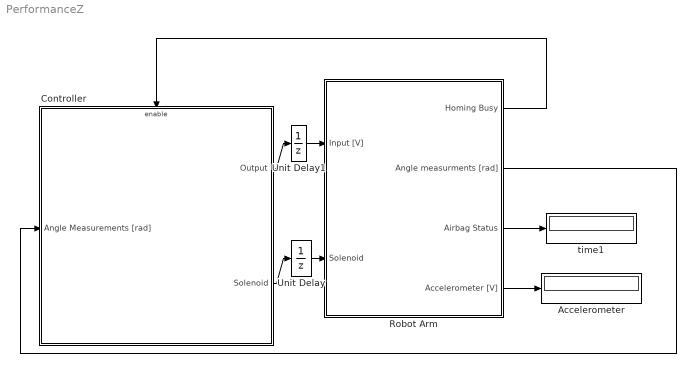
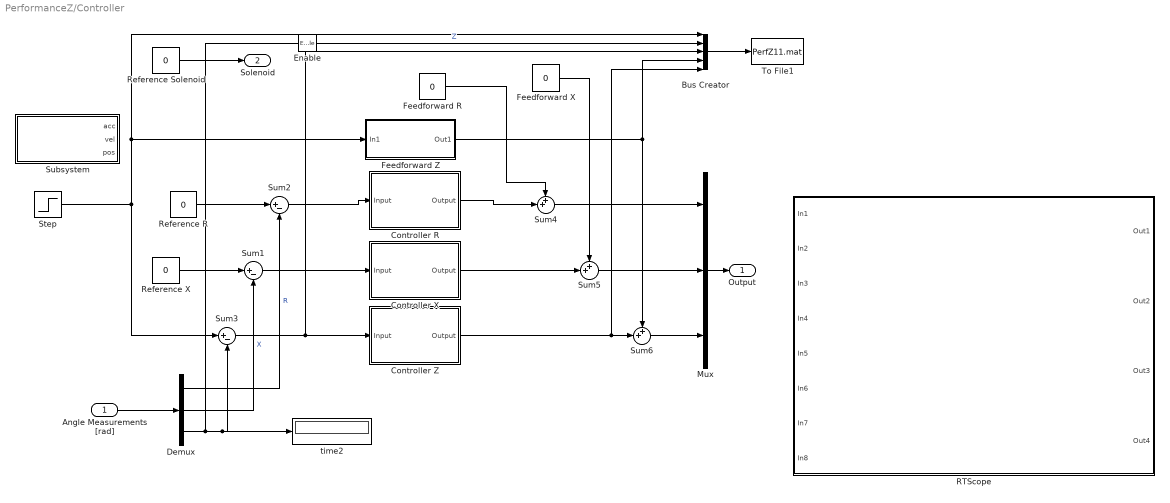
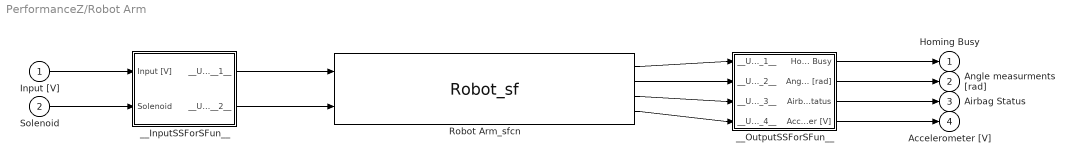
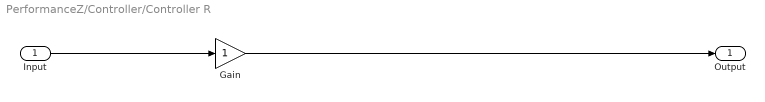
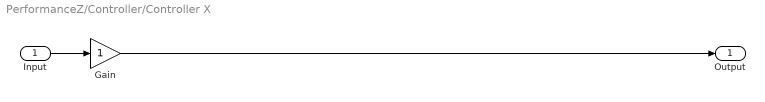
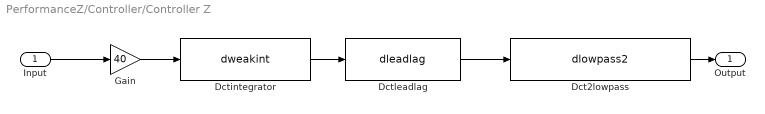
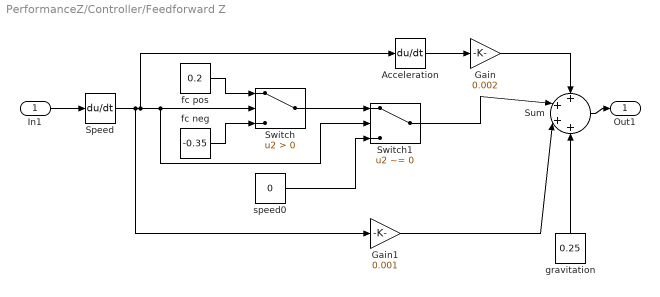
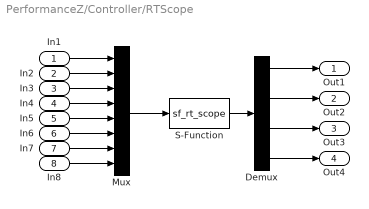
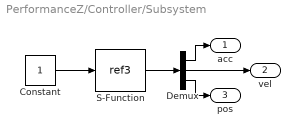
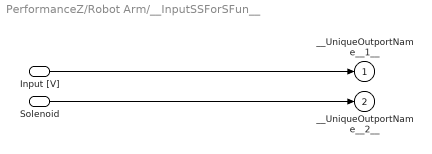
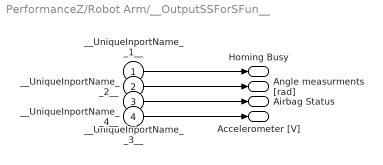
/*
 * PerformanceZ.c
 *
 * Code generation for model "PerformanceZ.mdl".
 *
 * Model version              : 1.943
 * Simulink Coder version : 8.1 (R2011b) 08-Jul-2011
 * C source code generated on : Sat Apr  2 10:57:51 2016
 *
 * Target selection: ectarget.tlc
 * Note: GRT includes extra infrastructure and instrumentation for prototyping
 * Embedded hardware selection: 32-bit Generic
 * Code generation objectives: Unspecified
 * Validation result: Not run
 */
#include "PerformanceZ.h"
#include "PerformanceZ_private.h"
#include "PerformanceZ_dt.h"
#undef S_FUNCTION_NAME
#if !defined(RTW_GENERATED_SFCN_TUNABLE_PRMS_Robot_sf)
#define RTW_GENERATED_SFCN_TUNABLE_PRMS_Robot_sf
#endif

#include "Robot_sf.h"

const real_T PerformanceZ_RGND = 0.0;  /* real_T ground */

/* Block signals (auto storage) */
BlockIO_PerformanceZ PerformanceZ_B;

/* Block states (auto storage) */
D_Work_PerformanceZ PerformanceZ_DWork;

/* Real-time model */
RT_MODEL_PerformanceZ PerformanceZ_M_;
RT_MODEL_PerformanceZ *const PerformanceZ_M = &PerformanceZ_M_;

/*
 * Writes out MAT-file header.  Returns success or failure.
 * Returns:
 *      0 - success
 *      1 - failure
 */
int_T rt_WriteMat4FileHeader(FILE *fp, int32_T m, int32_T n, const char *name)
{
  typedef enum { ELITTLE_ENDIAN, EBIG_ENDIAN } ByteOrder;

  int16_T one = 1;
  ByteOrder byteOrder = (*((int8_T *)&one)==1) ? ELITTLE_ENDIAN : EBIG_ENDIAN;
  int32_T type = (byteOrder == ELITTLE_ENDIAN) ? 0: 1000;
  int32_T imagf = 0;
  int32_T name_len = strlen(name) + 1;
  if ((fwrite(&type, sizeof(int32_T), 1, fp) == 0) ||
      (fwrite(&m, sizeof(int32_T), 1, fp) == 0) ||
      (fwrite(&n, sizeof(int32_T), 1, fp) == 0) ||
      (fwrite(&imagf, sizeof(int32_T), 1, fp) == 0) ||
      (fwrite(&name_len, sizeof(int32_T), 1, fp) == 0) ||
      (fwrite(name, sizeof(char), name_len, fp) == 0)) {
    return(1);
  } else {
    return(0);
  }
}                                      /* end rt_WriteMat4FileHeader */

/* Model output function */
void PerformanceZ_output(int_T tid)
{
  /* local block i/o variables */
  real_T rtb_TmpSignalConversionAtToFile[5];
  real_T rtb_Switch1;
  real_T rtb_Gain;

  /* Reset subsysRan breadcrumbs */
  srClearBC(PerformanceZ_DWork.Controller_SubsysRanBC);

  /* UnitDelay: '<Root>/Unit Delay1' */
  /* RTWBLOCK_START_COMMENT */
  PerformanceZ_B.UnitDelay1[0] = PerformanceZ_DWork.UnitDelay1_DSTATE[0];
  PerformanceZ_B.UnitDelay1[1] = PerformanceZ_DWork.UnitDelay1_DSTATE[1];
  PerformanceZ_B.UnitDelay1[2] = PerformanceZ_DWork.UnitDelay1_DSTATE[2];

  /* UnitDelay: '<Root>/Unit Delay' */
  PerformanceZ_B.UnitDelay = PerformanceZ_DWork.UnitDelay_DSTATE;

  /* RTW Generated Level2 S-Function Block: '<S2>/Robot Arm_sfcn' (Robot_sf) */
  {
    SimStruct *rts = PerformanceZ_M->childSfunctions[5];
    sfcnOutputs(rts, 0);
  }

  /* Outputs for Enabled SubSystem: '<Root>/Controller' incorporates:
   *  EnablePort: '<S1>/Enable'
   */
  if (PerformanceZ_B.RobotArm_sfcn_o1 > 0.0) {
    if (!PerformanceZ_DWork.Controller_MODE) {
      PerformanceZ_DWork.Controller_MODE = TRUE;
    }
  } else {
    if (PerformanceZ_DWork.Controller_MODE) {
      PerformanceZ_DWork.Controller_MODE = FALSE;
    }
  }

  if (PerformanceZ_DWork.Controller_MODE) {
    /* Sum: '<S1>/Sum3' incorporates:
     *  Constant: '<S1>/Reference X1'
     */
    PerformanceZ_B.Sum3 = PerformanceZ_P.ReferenceX1_Value -
      PerformanceZ_B.RobotArm_sfcn_o2[2];

    /* Derivative: '<S6>/Speed' */
    {
      real_T t = PerformanceZ_M->Timing.t[0];
      real_T timeStampA = PerformanceZ_DWork.Speed_RWORK.TimeStampA;
      real_T timeStampB = PerformanceZ_DWork.Speed_RWORK.TimeStampB;
      real_T *lastU = &PerformanceZ_DWork.Speed_RWORK.LastUAtTimeA;
      if (timeStampA >= t && timeStampB >= t) {
        PerformanceZ_B.Speed = 0.0;
      } else {
        real_T deltaT;
        real_T lastTime = timeStampA;
        if (timeStampA < timeStampB) {
          if (timeStampB < t) {
            lastTime = timeStampB;
            lastU = &PerformanceZ_DWork.Speed_RWORK.LastUAtTimeB;
          }
        } else if (timeStampA >= t) {
          lastTime = timeStampB;
          lastU = &PerformanceZ_DWork.Speed_RWORK.LastUAtTimeB;
        }

        deltaT = t - lastTime;
        PerformanceZ_B.Speed = (0.0 - *lastU++) / deltaT;
      }
    }

    /* Derivative: '<S6>/Acceleration' */
    {
      real_T t = PerformanceZ_M->Timing.t[0];
      real_T timeStampA = PerformanceZ_DWork.Acceleration_RWORK.TimeStampA;
      real_T timeStampB = PerformanceZ_DWork.Acceleration_RWORK.TimeStampB;
      real_T *lastU = &PerformanceZ_DWork.Acceleration_RWORK.LastUAtTimeA;
      if (timeStampA >= t && timeStampB >= t) {
        rtb_Switch1 = 0.0;
      } else {
        real_T deltaT;
        real_T lastTime = timeStampA;
        if (timeStampA < timeStampB) {
          if (timeStampB < t) {
            lastTime = timeStampB;
            lastU = &PerformanceZ_DWork.Acceleration_RWORK.LastUAtTimeB;
          }
        } else if (timeStampA >= t) {
          lastTime = timeStampB;
          lastU = &PerformanceZ_DWork.Acceleration_RWORK.LastUAtTimeB;
        }

        deltaT = t - lastTime;
        rtb_Switch1 = (PerformanceZ_B.Speed - *lastU++) / deltaT;
      }
    }

    /* Gain: '<S6>/Gain' */
    rtb_Gain = PerformanceZ_P.Gain_Gain * rtb_Switch1;

    /* Switch: '<S6>/Switch1' incorporates:
     *  Constant: '<S6>/speed0'
     */
    if (PerformanceZ_B.Speed != 0.0) {
      /* Switch: '<S6>/Switch' incorporates:
       *  Constant: '<S6>/fc neg'
       *  Constant: '<S6>/fc pos'
       */
      if (PerformanceZ_B.Speed > PerformanceZ_P.Switch_Threshold) {
        rtb_Switch1 = PerformanceZ_P.fcpos_Value;
      } else {
        rtb_Switch1 = PerformanceZ_P.fcneg_Value;
      }

      /* End of Switch: '<S6>/Switch' */
    } else {
      rtb_Switch1 = PerformanceZ_P.speed0_Value;
    }

    /* End of Switch: '<S6>/Switch1' */

    /* Sum: '<S6>/Sum' incorporates:
     *  Constant: '<S6>/gravitation'
     *  Gain: '<S6>/Gain1'
     */
    PerformanceZ_B.Sum = ((rtb_Gain + rtb_Switch1) + PerformanceZ_P.Gain1_Gain *
                          PerformanceZ_B.Speed) +
      PerformanceZ_P.gravitation_Value;

    /* Gain: '<S5>/Gain' */
    PerformanceZ_B.Gain = PerformanceZ_P.Gain_Gain_c * PerformanceZ_B.Sum3;

    /* Level2 S-Function Block: '<S5>/Dctintegrator' (dweakint) */
    {
      SimStruct *rts = PerformanceZ_M->childSfunctions[0];
      sfcnOutputs(rts, 1);
    }

    /* Level2 S-Function Block: '<S5>/Dctleadlag' (dleadlag) */
    {
      SimStruct *rts = PerformanceZ_M->childSfunctions[1];
      sfcnOutputs(rts, 1);
    }

    /* Level2 S-Function Block: '<S5>/Dct2lowpass' (dlowpass2) */
    {
      SimStruct *rts = PerformanceZ_M->childSfunctions[2];
      sfcnOutputs(rts, 1);
    }

    /* SignalConversion: '<S1>/TmpSignal ConversionAtTo File1Inport1' */
    rtb_TmpSignalConversionAtToFile[0] = 0.0;
    rtb_TmpSignalConversionAtToFile[1] = PerformanceZ_B.RobotArm_sfcn_o2[2];
    rtb_TmpSignalConversionAtToFile[2] = PerformanceZ_B.Sum3;
    rtb_TmpSignalConversionAtToFile[3] = PerformanceZ_B.Sum;
    rtb_TmpSignalConversionAtToFile[4] = PerformanceZ_B.Dct2lowpass;

    /* ToFile: '<S1>/To File1' */
    if (!(++PerformanceZ_DWork.ToFile1_IWORK.Decimation % 1) &&
        (PerformanceZ_DWork.ToFile1_IWORK.Count*6)+1 < 100000000 ) {
      FILE *fp = (FILE *) PerformanceZ_DWork.ToFile1_PWORK.FilePtr;
      if (fp != (NULL)) {
        real_T u[6];
        PerformanceZ_DWork.ToFile1_IWORK.Decimation = 0;
        u[0] = PerformanceZ_M->Timing.t[1];
        u[1] = rtb_TmpSignalConversionAtToFile[0];
        u[2] = rtb_TmpSignalConversionAtToFile[1];
        u[3] = rtb_TmpSignalConversionAtToFile[2];
        u[4] = rtb_TmpSignalConversionAtToFile[3];
        u[5] = rtb_TmpSignalConversionAtToFile[4];
        if (fwrite(u, sizeof(real_T), 6, fp) != 6) {
          rtmSetErrorStatus(PerformanceZ_M,
                            "Error writing to MAT-file PerfZ11.mat");
          return;
        }

        if (((++PerformanceZ_DWork.ToFile1_IWORK.Count)*6)+1 >= 100000000) {
          (void)fprintf(stdout,
                        "*** The ToFile block will stop logging data before\n"
                        "    the simulation has ended, because it has reached\n"
                        "    the maximum number of elements (100000000)\n"
                        "    allowed in MAT-file PerfZ11.mat.\n");
        }
      }
    }

    /* Sum: '<S1>/Sum4' incorporates:
     *  Constant: '<S1>/Feedforward R'
     *  Constant: '<S1>/Reference R'
     *  Gain: '<S3>/Gain'
     *  Sum: '<S1>/Sum2'
     */
    PerformanceZ_B.Sum4 = (PerformanceZ_P.ReferenceR_Value -
      PerformanceZ_B.RobotArm_sfcn_o2[0]) * PerformanceZ_P.Gain_Gain_cq +
      PerformanceZ_P.FeedforwardR_Value;

    /* Sum: '<S1>/Sum5' incorporates:
     *  Constant: '<S1>/Feedforward X'
     *  Constant: '<S1>/Reference X'
     *  Gain: '<S4>/Gain'
     *  Sum: '<S1>/Sum1'
     */
    PerformanceZ_B.Sum5 = (PerformanceZ_P.ReferenceX_Value -
      PerformanceZ_B.RobotArm_sfcn_o2[1]) * PerformanceZ_P.Gain_Gain_m +
      PerformanceZ_P.FeedforwardX_Value;

    /* Sum: '<S1>/Sum6' */
    PerformanceZ_B.Sum6 = PerformanceZ_B.Sum + PerformanceZ_B.Dct2lowpass;

    /* Constant: '<S1>/Reference Solenoid' */
    PerformanceZ_B.ReferenceSolenoid = PerformanceZ_P.ReferenceSolenoid_Value;

    /* Level2 S-Function Block: '<S7>/S-Function' (sf_rt_scope) */
    {
      SimStruct *rts = PerformanceZ_M->childSfunctions[3];
      sfcnOutputs(rts, 0);
    }

    /* Level2 S-Function Block: '<S8>/S-Function' (ref3) */
    {
      SimStruct *rts = PerformanceZ_M->childSfunctions[4];
      sfcnOutputs(rts, 0);
    }

    srUpdateBC(PerformanceZ_DWork.Controller_SubsysRanBC);
  }

  /* End of Outputs for SubSystem: '<Root>/Controller' */

  /* tid is required for a uniform function interface.
   * Argument tid is not used in the function. */
  UNUSED_PARAMETER(tid);
}

/* Model update function */
void PerformanceZ_update(int_T tid)
{
  /* Update for UnitDelay: '<Root>/Unit Delay1' */
  PerformanceZ_DWork.UnitDelay1_DSTATE[0] = PerformanceZ_B.Sum4;
  PerformanceZ_DWork.UnitDelay1_DSTATE[1] = PerformanceZ_B.Sum5;
  PerformanceZ_DWork.UnitDelay1_DSTATE[2] = PerformanceZ_B.Sum6;

  /* Update for UnitDelay: '<Root>/Unit Delay' */
  PerformanceZ_DWork.UnitDelay_DSTATE = PerformanceZ_B.ReferenceSolenoid;

  /* RTW Generated Level2 S-Function Block: '<S2>/Robot Arm_sfcn' (Robot_sf) */
  {
    SimStruct *rts = PerformanceZ_M->childSfunctions[5];
    sfcnUpdate(rts, 0);
    if (ssGetErrorStatus(rts) != (NULL))
      return;
  }

  /* Update for Enabled SubSystem: '<Root>/Controller' incorporates:
   *  Update for EnablePort: '<S1>/Enable'
   */
  if (PerformanceZ_DWork.Controller_MODE) {
    /* Update for Derivative: '<S6>/Speed' */
    {
      real_T timeStampA = PerformanceZ_DWork.Speed_RWORK.TimeStampA;
      real_T timeStampB = PerformanceZ_DWork.Speed_RWORK.TimeStampB;
      real_T* lastTime = &PerformanceZ_DWork.Speed_RWORK.TimeStampA;
      real_T* lastU = &PerformanceZ_DWork.Speed_RWORK.LastUAtTimeA;
      if (timeStampA != rtInf) {
        if (timeStampB == rtInf) {
          lastTime = &PerformanceZ_DWork.Speed_RWORK.TimeStampB;
          lastU = &PerformanceZ_DWork.Speed_RWORK.LastUAtTimeB;
        } else if (timeStampA >= timeStampB) {
          lastTime = &PerformanceZ_DWork.Speed_RWORK.TimeStampB;
          lastU = &PerformanceZ_DWork.Speed_RWORK.LastUAtTimeB;
        }
      }

      *lastTime = PerformanceZ_M->Timing.t[0];
      *lastU++ = 0.0;
    }

    /* Update for Derivative: '<S6>/Acceleration' */
    {
      real_T timeStampA = PerformanceZ_DWork.Acceleration_RWORK.TimeStampA;
      real_T timeStampB = PerformanceZ_DWork.Acceleration_RWORK.TimeStampB;
      real_T* lastTime = &PerformanceZ_DWork.Acceleration_RWORK.TimeStampA;
      real_T* lastU = &PerformanceZ_DWork.Acceleration_RWORK.LastUAtTimeA;
      if (timeStampA != rtInf) {
        if (timeStampB == rtInf) {
          lastTime = &PerformanceZ_DWork.Acceleration_RWORK.TimeStampB;
          lastU = &PerformanceZ_DWork.Acceleration_RWORK.LastUAtTimeB;
        } else if (timeStampA >= timeStampB) {
          lastTime = &PerformanceZ_DWork.Acceleration_RWORK.TimeStampB;
          lastU = &PerformanceZ_DWork.Acceleration_RWORK.LastUAtTimeB;
        }
      }

      *lastTime = PerformanceZ_M->Timing.t[0];
      *lastU++ = PerformanceZ_B.Speed;
    }
  }

  /* End of Update for SubSystem: '<Root>/Controller' */

  /* Update absolute time for base rate */
  /* The "clockTick0" counts the number of times the code of this task has
   * been executed. The absolute time is the multiplication of "clockTick0"
   * and "Timing.stepSize0". Size of "clockTick0" ensures timer will not
   * overflow during the application lifespan selected.
   * Timer of this task consists of two 32 bit unsigned integers.
   * The two integers represent the low bits Timing.clockTick0 and the high bits
   * Timing.clockTickH0. When the low bit overflows to 0, the high bits increment.
   */
  if (!(++PerformanceZ_M->Timing.clockTick0)) {
    ++PerformanceZ_M->Timing.clockTickH0;
  }

  PerformanceZ_M->Timing.t[0] = PerformanceZ_M->Timing.clockTick0 *
    PerformanceZ_M->Timing.stepSize0 + PerformanceZ_M->Timing.clockTickH0 *
    PerformanceZ_M->Timing.stepSize0 * 4294967296.0;

  {
    /* Update absolute timer for sample time: [0.000244140625s, 0.0s] */
    /* The "clockTick1" counts the number of times the code of this task has
     * been executed. The absolute time is the multiplication of "clockTick1"
     * and "Timing.stepSize1". Size of "clockTick1" ensures timer will not
     * overflow during the application lifespan selected.
     * Timer of this task consists of two 32 bit unsigned integers.
     * The two integers represent the low bits Timing.clockTick1 and the high bits
     * Timing.clockTickH1. When the low bit overflows to 0, the high bits increment.
     */
    if (!(++PerformanceZ_M->Timing.clockTick1)) {
      ++PerformanceZ_M->Timing.clockTickH1;
    }

    PerformanceZ_M->Timing.t[1] = PerformanceZ_M->Timing.clockTick1 *
      PerformanceZ_M->Timing.stepSize1 + PerformanceZ_M->Timing.clockTickH1 *
      PerformanceZ_M->Timing.stepSize1 * 4294967296.0;
  }

  /* tid is required for a uniform function interface.
   * Argument tid is not used in the function. */
  UNUSED_PARAMETER(tid);
}
